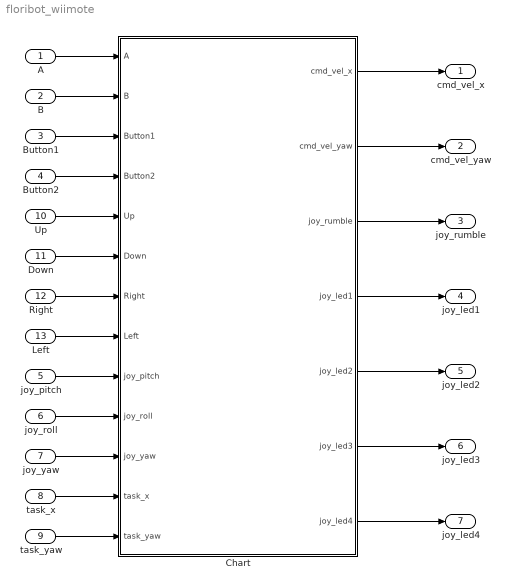
== stateflow chart floribot_wiimote/Chart ==
  state manual
    joy_led1 = true;
    joy_led2 = false;
    joy_led3 = false;
    joy_led4 = false;
    state stand_still
      cmd_vel_x = 0;
      cmd_vel_yaw = 0;
    state control_x_and_yaw
      during:
      cmd_vel_x = joy_pitch/DIRECT_PITCH_AXIS_DIV;
      cmd_vel_yaw = joy_roll/DIRECT_ROLL_AXIS_DIV;
    state Up
    state Down
    state Right
    state Left
    (default) -> stand_still
    stand_still -> control_x_and_yaw [order 1] : [B]
    control_x_and_yaw -> stand_still : [!B]
    Up -> Up [order 2] : [joy_pitch > 0]/cmd_vel_x = joy_pitch/DIRECT_PITCH_AXIS_DIV;
    stand_still -> Up [order 2] : [Up]
    Up -> stand_still [order 1] : [!Up]
    stand_still -> Down [order 3] : [Down]
    Down -> Down [order 2] : [joy_pitch < 0]/cmd_vel_x = joy_pitch/DIRECT_PITCH_AXIS_DIV;
    Down -> stand_still [order 1] : [!Down]
    stand_still -> Right [order 4] : [Right]
    Right -> Right [order 2] : [joy_roll > 0]/cmd_vel_yaw = joy_roll/DIRECT_ROLL_AXIS_DIV;
    Right -> stand_still [order 1] : [!Right]
    Left -> Left [order 2] : [joy_roll < 0]/cmd_vel_yaw = joy_roll/DIRECT_ROLL_AXIS_DIV;
    stand_still -> Left [order 5] : [Left]
    Left -> stand_still [order 1] : [!Left]
  state automatic
    during:
    cmd_vel_x = task_x;
    cmd_vel_yaw = task_yaw;
    joy_led1 = false;
    joy_led2 = true;
    joy_led3 = false;
    joy_led4 = false;
  (default) -> manual
  automatic -> manual : [Button1]
  manual -> automatic : [Button2 && !Button1]
  data: A input boolean; B input boolean; Button1 input boolean; Button2 input boolean; Up input boolean; Down input boolean; Right input boolean; Left input boolean; joy_pitch input double; joy_roll input double; joy_yaw input double; task_x input double; task_yaw input double; cmd_vel_x output double; cmd_vel_yaw output double; joy_rumble output double; joy_led1 output boolean; joy_led2 output boolean; joy_led3 output boolean; joy_led4 output boolean; DIRECT_PITCH_AXIS_DIV constant double =10; DIRECT_ROLL_AXIS_DIV constant double =-30

/*
 * File: floribot_wiimote.cpp
 *
 * Code generated for Simulink model 'floribot_wiimote'.
 *
 * Model version                  : 1.32
 * Simulink Coder version         : 8.4 (R2013a) 13-Feb-2013
 * TLC version                    : 8.4 (Jan 19 2013)
 * C/C++ source code generated on : Fri Jun 14 00:27:59 2013
 *
 * Target selection: ert.tlc
 * Embedded hardware selection: 32-bit Generic
 * Code generation objectives: Unspecified
 * Validation result: Not run
 */

#include "floribot_wiimote.h"
#include "floribot_wiimote_private.h"

/* Named constants for Chart: '<Root>/Chart' */
#define floribot__DIRECT_PITCH_AXIS_DIV (10.0)
#define floribot_w_DIRECT_ROLL_AXIS_DIV (-30.0)
#define floribot_w_IN_control_x_and_yaw ((uint8_T)5U)
#define floribot_wii_IN_NO_ACTIVE_CHILD ((uint8_T)0U)
#define floribot_wiimote_IN_Down       ((uint8_T)1U)
#define floribot_wiimote_IN_Left       ((uint8_T)2U)
#define floribot_wiimote_IN_Right      ((uint8_T)3U)
#define floribot_wiimote_IN_Up         ((uint8_T)4U)
#define floribot_wiimote_IN_automatic  ((uint8_T)1U)
#define floribot_wiimote_IN_manual     ((uint8_T)2U)
#define floribot_wiimote_IN_stand_still ((uint8_T)6U)

/* Block states (auto storage) */
DW_floribot_wiimote_T floribot_wiimote_DW;

/* External inputs (root inport signals with auto storage) */
ExtU_floribot_wiimote_T floribot_wiimote_U;

/* External outputs (root outports fed by signals with auto storage) */
ExtY_floribot_wiimote_T floribot_wiimote_Y;

/* Real-time model */
RT_MODEL_floribot_wiimote_T floribot_wiimote_M_;
RT_MODEL_floribot_wiimote_T *const floribot_wiimote_M = &floribot_wiimote_M_;

/* Model step function */
void floribot_wiimote_step(void)
{
  /* Chart: '<Root>/Chart' incorporates:
   *  Inport: '<Root>/B'
   *  Inport: '<Root>/Button1'
   *  Inport: '<Root>/Button2'
   *  Inport: '<Root>/Down'
   *  Inport: '<Root>/Left'
   *  Inport: '<Root>/Right'
   *  Inport: '<Root>/Up'
   *  Inport: '<Root>/joy_pitch'
   *  Inport: '<Root>/joy_roll'
   */
  /* Gateway: Chart */
  /* During: Chart */
  if (floribot_wiimote_DW.is_active_c1_floribot_wiimote == 0U) {
    /* Entry: Chart */
    floribot_wiimote_DW.is_active_c1_floribot_wiimote = 1U;

    /* Entry Internal: Chart */
    /* Transition: '<S1>:19' */
    floribot_wiimote_DW.is_c1_floribot_wiimote = floribot_wiimote_IN_manual;

    /* Outport: '<Root>/joy_led1' */
    /* Entry 'manual': '<S1>:17' */
    floribot_wiimote_Y.joy_led1 = TRUE;

    /* Outport: '<Root>/joy_led2' */
    floribot_wiimote_Y.joy_led2 = FALSE;

    /* Outport: '<Root>/joy_led3' */
    floribot_wiimote_Y.joy_led3 = FALSE;

    /* Outport: '<Root>/joy_led4' */
    floribot_wiimote_Y.joy_led4 = FALSE;

    /* Entry Internal 'manual': '<S1>:17' */
    /* Transition: '<S1>:23' */
    floribot_wiimote_DW.is_manual = floribot_wiimote_IN_stand_still;

    /* Outport: '<Root>/cmd_vel_x' */
    /* Entry 'stand_still': '<S1>:22' */
    floribot_wiimote_Y.cmd_vel_x = 0.0;

    /* Outport: '<Root>/cmd_vel_yaw' */
    floribot_wiimote_Y.cmd_vel_yaw = 0.0;
  } else if (floribot_wiimote_DW.is_c1_floribot_wiimote ==
             floribot_wiimote_IN_automatic) {
    /* During 'automatic': '<S1>:18' */
    if (floribot_wiimote_U.Button1) {
      /* Transition: '<S1>:21' */
      floribot_wiimote_DW.is_c1_floribot_wiimote = floribot_wiimote_IN_manual;

      /* Outport: '<Root>/joy_led1' */
      /* Entry 'manual': '<S1>:17' */
      floribot_wiimote_Y.joy_led1 = TRUE;

      /* Outport: '<Root>/joy_led2' */
      floribot_wiimote_Y.joy_led2 = FALSE;

      /* Outport: '<Root>/joy_led3' */
      floribot_wiimote_Y.joy_led3 = FALSE;

      /* Outport: '<Root>/joy_led4' */
      floribot_wiimote_Y.joy_led4 = FALSE;

      /* Entry Internal 'manual': '<S1>:17' */
      /* Transition: '<S1>:23' */
      floribot_wiimote_DW.is_manual = floribot_wiimote_IN_stand_still;

      /* Outport: '<Root>/cmd_vel_x' */
      /* Entry 'stand_still': '<S1>:22' */
      floribot_wiimote_Y.cmd_vel_x = 0.0;

      /* Outport: '<Root>/cmd_vel_yaw' */
      floribot_wiimote_Y.cmd_vel_yaw = 0.0;
    } else {
      /* Outport: '<Root>/cmd_vel_x' incorporates:
       *  Inport: '<Root>/task_x'
       */
      floribot_wiimote_Y.cmd_vel_x = floribot_wiimote_U.task_x;

      /* Outport: '<Root>/cmd_vel_yaw' incorporates:
       *  Inport: '<Root>/task_yaw'
       */
      floribot_wiimote_Y.cmd_vel_yaw = floribot_wiimote_U.task_yaw;

      /* Outport: '<Root>/joy_led1' */
      floribot_wiimote_Y.joy_led1 = FALSE;

      /* Outport: '<Root>/joy_led2' */
      floribot_wiimote_Y.joy_led2 = TRUE;

      /* Outport: '<Root>/joy_led3' */
      floribot_wiimote_Y.joy_led3 = FALSE;

      /* Outport: '<Root>/joy_led4' */
      floribot_wiimote_Y.joy_led4 = FALSE;
    }
  } else {
    /* During 'manual': '<S1>:17' */
    if (floribot_wiimote_U.Button2 && (!floribot_wiimote_U.Button1)) {
      /* Transition: '<S1>:20' */
      /* Exit Internal 'manual': '<S1>:17' */
      floribot_wiimote_DW.is_manual = floribot_wii_IN_NO_ACTIVE_CHILD;
      floribot_wiimote_DW.is_c1_floribot_wiimote = floribot_wiimote_IN_automatic;
    } else {
      switch (floribot_wiimote_DW.is_manual) {
       case floribot_wiimote_IN_Down:
        /* During 'Down': '<S1>:36' */
        if (!floribot_wiimote_U.Down) {
          /* Transition: '<S1>:38' */
          floribot_wiimote_DW.is_manual = floribot_wiimote_IN_stand_still;

          /* Outport: '<Root>/cmd_vel_x' */
          /* Entry 'stand_still': '<S1>:22' */
          floribot_wiimote_Y.cmd_vel_x = 0.0;

          /* Outport: '<Root>/cmd_vel_yaw' */
          floribot_wiimote_Y.cmd_vel_yaw = 0.0;
        } else {
          if (floribot_wiimote_U.joy_pitch < 0.0) {
            /* Outport: '<Root>/cmd_vel_x' incorporates:
             *  Inport: '<Root>/joy_pitch'
             */
            /* Transition: '<S1>:46' */
            floribot_wiimote_Y.cmd_vel_x = floribot_wiimote_U.joy_pitch /
              floribot__DIRECT_PITCH_AXIS_DIV;
            floribot_wiimote_DW.is_manual = floribot_wiimote_IN_Down;
          }
        }
        break;

       case floribot_wiimote_IN_Left:
        /* During 'Left': '<S1>:40' */
        if (!floribot_wiimote_U.Left) {
          /* Transition: '<S1>:44' */
          floribot_wiimote_DW.is_manual = floribot_wiimote_IN_stand_still;

          /* Outport: '<Root>/cmd_vel_x' */
          /* Entry 'stand_still': '<S1>:22' */
          floribot_wiimote_Y.cmd_vel_x = 0.0;

          /* Outport: '<Root>/cmd_vel_yaw' */
          floribot_wiimote_Y.cmd_vel_yaw = 0.0;
        } else {
          if (floribot_wiimote_U.joy_roll < 0.0) {
            /* Outport: '<Root>/cmd_vel_yaw' incorporates:
             *  Inport: '<Root>/joy_roll'
             */
            /* Transition: '<S1>:48' */
            floribot_wiimote_Y.cmd_vel_yaw = floribot_wiimote_U.joy_roll /
              floribot_w_DIRECT_ROLL_AXIS_DIV;
            floribot_wiimote_DW.is_manual = floribot_wiimote_IN_Left;
          }
        }
        break;

       case floribot_wiimote_IN_Right:
        /* During 'Right': '<S1>:39' */
        if (!floribot_wiimote_U.Right) {
          /* Transition: '<S1>:42' */
          floribot_wiimote_DW.is_manual = floribot_wiimote_IN_stand_still;

          /* Outport: '<Root>/cmd_vel_x' */
          /* Entry 'stand_still': '<S1>:22' */
          floribot_wiimote_Y.cmd_vel_x = 0.0;

          /* Outport: '<Root>/cmd_vel_yaw' */
          floribot_wiimote_Y.cmd_vel_yaw = 0.0;
        } else {
          if (floribot_wiimote_U.joy_roll > 0.0) {
            /* Outport: '<Root>/cmd_vel_yaw' incorporates:
             *  Inport: '<Root>/joy_roll'
             */
            /* Transition: '<S1>:47' */
            floribot_wiimote_Y.cmd_vel_yaw = floribot_wiimote_U.joy_roll /
              floribot_w_DIRECT_ROLL_AXIS_DIV;
            floribot_wiimote_DW.is_manual = floribot_wiimote_IN_Right;
          }
        }
        break;

       case floribot_wiimote_IN_Up:
        /* During 'Up': '<S1>:33' */
        if (!floribot_wiimote_U.Up) {
          /* Transition: '<S1>:35' */
          floribot_wiimote_DW.is_manual = floribot_wiimote_IN_stand_still;

          /* Outport: '<Root>/cmd_vel_x' */
          /* Entry 'stand_still': '<S1>:22' */
          floribot_wiimote_Y.cmd_vel_x = 0.0;

          /* Outport: '<Root>/cmd_vel_yaw' */
          floribot_wiimote_Y.cmd_vel_yaw = 0.0;
        } else {
          if (floribot_wiimote_U.joy_pitch > 0.0) {
            /* Outport: '<Root>/cmd_vel_x' incorporates:
             *  Inport: '<Root>/joy_pitch'
             */
            /* Transition: '<S1>:45' */
            floribot_wiimote_Y.cmd_vel_x = floribot_wiimote_U.joy_pitch /
              floribot__DIRECT_PITCH_AXIS_DIV;
            floribot_wiimote_DW.is_manual = floribot_wiimote_IN_Up;
          }
        }
        break;

       case floribot_w_IN_control_x_and_yaw:
        /* During 'control_x_and_yaw': '<S1>:24' */
        if (!floribot_wiimote_U.B) {
          /* Transition: '<S1>:26' */
          floribot_wiimote_DW.is_manual = floribot_wiimote_IN_stand_still;

          /* Outport: '<Root>/cmd_vel_x' */
          /* Entry 'stand_still': '<S1>:22' */
          floribot_wiimote_Y.cmd_vel_x = 0.0;

          /* Outport: '<Root>/cmd_vel_yaw' */
          floribot_wiimote_Y.cmd_vel_yaw = 0.0;
        } else {
          /* Outport: '<Root>/cmd_vel_x' incorporates:
           *  Inport: '<Root>/joy_pitch'
           */
          floribot_wiimote_Y.cmd_vel_x = floribot_wiimote_U.joy_pitch /
            floribot__DIRECT_PITCH_AXIS_DIV;

          /* Outport: '<Root>/cmd_vel_yaw' incorporates:
           *  Inport: '<Root>/joy_roll'
           */
          floribot_wiimote_Y.cmd_vel_yaw = floribot_wiimote_U.joy_roll /
            floribot_w_DIRECT_ROLL_AXIS_DIV;
        }
        break;

       default:
        /* During 'stand_still': '<S1>:22' */
        if (floribot_wiimote_U.B) {
          /* Transition: '<S1>:25' */
          floribot_wiimote_DW.is_manual = floribot_w_IN_control_x_and_yaw;
        } else if (floribot_wiimote_U.Up) {
          /* Transition: '<S1>:34' */
          floribot_wiimote_DW.is_manual = floribot_wiimote_IN_Up;
        } else if (floribot_wiimote_U.Down) {
          /* Transition: '<S1>:37' */
          floribot_wiimote_DW.is_manual = floribot_wiimote_IN_Down;
        } else if (floribot_wiimote_U.Right) {
          /* Transition: '<S1>:41' */
          floribot_wiimote_DW.is_manual = floribot_wiimote_IN_Right;
        } else {
          if (floribot_wiimote_U.Left) {
            /* Transition: '<S1>:43' */
            floribot_wiimote_DW.is_manual = floribot_wiimote_IN_Left;
          }
        }
        break;
      }
    }
  }

  /* End of Chart: '<Root>/Chart' */
}
